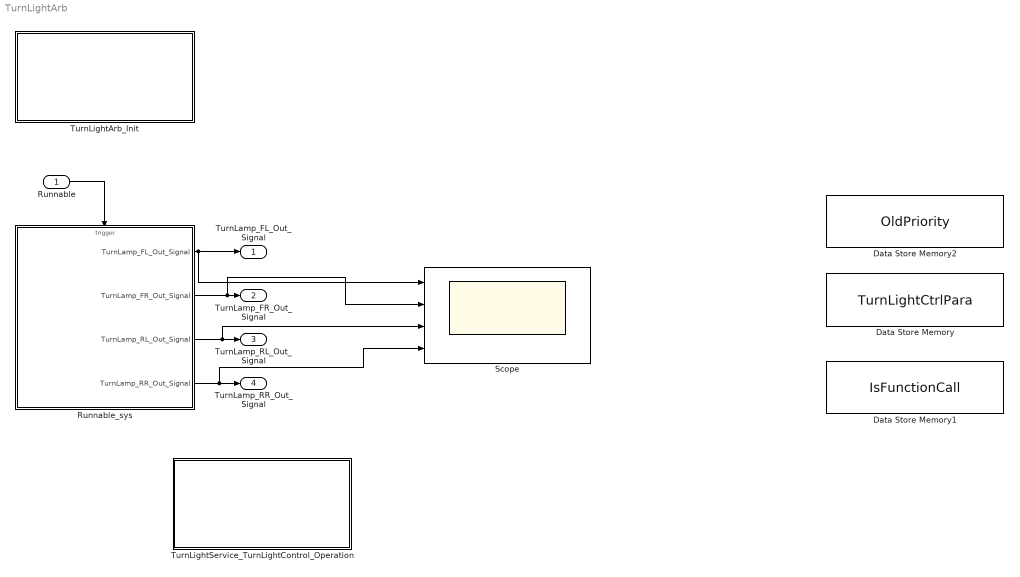
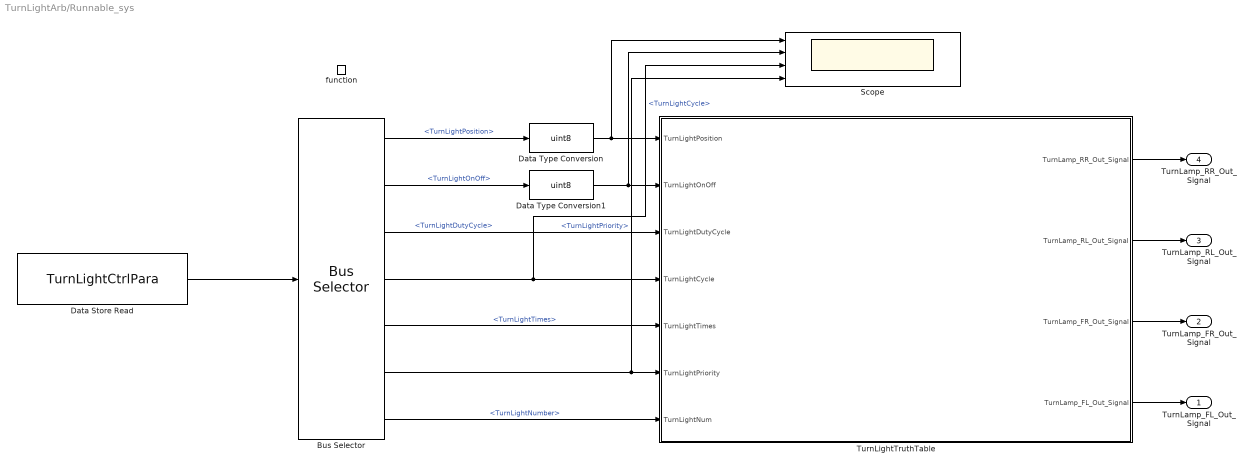
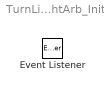
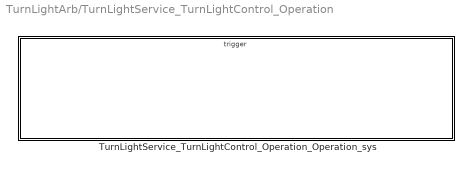
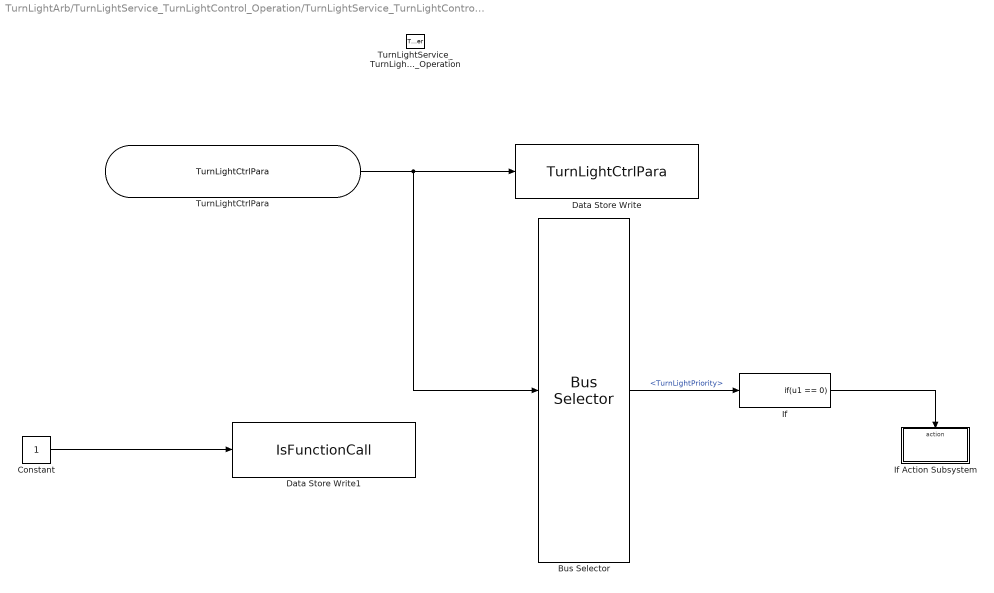
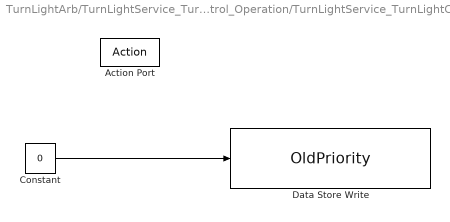
== stateflow chart TurnLightArb/Runnable_sys/TurnLightTruthTable ==
  state IDLE_
    en:
    UsePriorityArb();
  state TrunLightArtribution [function]
    (default) -> (junction 448)
    (junction 448) -> (junction 450) : { aVarTruthTableCondition_1 = (TurnLightPosition==ComplexTurnLightPosition.RIGHT); }
    (junction 450) -> (junction 452) : { aVarTruthTableCondition_2 = (TurnLightPosition==ComplexTurnLightPosition.LEFT); }
    (junction 452) -> (junction 454) : { aVarTruthTableCondition_3 = (TurnLightPosition==ComplexTurnLightPosition.FRONT_LEFT); }
    (junction 454) -> (junction 456) : { aVarTruthTableCondition_4 = (TurnLightPosition==ComplexTurnLightPosition.FRONT_RIGHT); }
    (junction 456) -> (junction 458) : { aVarTruthTableCondition_5 = (TurnLightPosition==ComplexTurnLightPosition.REAR_LEFT); }
    (junction 458) -> (junction 460) : { aVarTruthTableCondition_6 = (TurnLightPosition==ComplexTurnLightPosition.REAR_RIGHT); }
    (junction 460) -> (junction 462) : { aVarTruthTableCondition_7 = (TurnLightPosition==ComplexTurnLightPosition.ALL); }
    (junction 462) -> (junction 464) : { aVarTruthTableCondition_8 = (TurnLightOnOff==ComplexTurnLightOnOff.ON); }
    (junction 464) -> (junction 466) : { aVarTruthTableCondition_9 = (TurnLightOnOff==ComplexTurnLightOnOff.OFF); }
    (junction 466) -> (junction 468) : { aVarTruthTableCondition_10 = (TurnLightCycle==8); }
    (junction 468) -> (junction 470) : { aVarTruthTableCondition_11 = (TurnLightCycle==4); }
    (junction 470) -> (junction 472) : { aVarTruthTableCondition_12 = (TurnLightPriority==3); }
    (junction 472) -> (junction 474) : { aVarTruthTableCondition_13 = (TurnLightPriority==4); }
    (junction 474) -> (junction 476) : { aVarTruthTableCondition_14 = (TurnLightNum==3); }
    (junction 476) -> (junction 478) : { aVarTruthTableCondition_15 = (TurnLightNum==0); }
    (junction 478) -> (junction 480) [order 1] : [aVarTruthTableCondition_3 && aVarTruthTableCondition_9 && aVarTruthTableCondition_13 && aVarTruthTableCondition_15]
    (junction 480) -> (junction 482) : { /* 'FL_OFF': */ TurnLamp_FL_Out_Signal=NOQUEST; }
    (junction 478) -> (junction 484) [order 2]
    (junction 484) -> (junction 486) [order 1] : [aVarTruthTableCondition_4 && aVarTruthTableCondition_9 && aVarTruthTableCondition_13 && aVarTruthTableCondition_15]
    (junction 486) -> (junction 488) : { /* 'FR_OFF': */ TurnLamp_FR_Out_Signal=NOQUEST; }
    (junction 484) -> (junction 490) [order 2]
    (junction 490) -> (junction 492) [order 1] : [aVarTruthTableCondition_5 && aVarTruthTableCondition_9 && aVarTruthTableCondition_13 && aVarTruthTableCondition_15]
    (junction 492) -> (junction 494) : { /* 'RL_OFF': */ TurnLamp_RL_Out_Signal=NOQUEST; }
    (junction 490) -> (junction 496) [order 2]
    (junction 496) -> (junction 498) [order 1] : [aVarTruthTableCondition_6 && aVarTruthTableCondition_9 && aVarTruthTableCondition_13 && aVarTruthTableCondition_15]
    (junction 498) -> (junction 500) : { /* 'RR_OFF': */ TurnLamp_RR_Out_Signal=NOQUEST; }
    (junction 496) -> (junction 502) [order 2]
    (junction 502) -> (junction 504) [order 1] : [aVarTruthTableCondition_3 && aVarTruthTableCondition_8 && aVarTruthTableCondition_11 && aVarTruthTableCondition_13 && aVarTruthTableCondition_15]
    (junction 504) -> (junction 506) : { /* 'FL_DOUBLE': */ TurnLamp_FL_Out_Signal=MODE_DOUBLE; }
    (junction 502) -> (junction 508) [order 2]
    (junction 508) -> (junction 510) [order 1] : [aVarTruthTableCondition_4 && aVarTruthTableCondition_8 && aVarTruthTableCondition_11 && aVarTruthTableCondition_13 && aVarTruthTableCondition_15]
    (junction 510) -> (junction 512) : { /* 'FR_DOUBLE': */ TurnLamp_FR_Out_Signal=MODE_DOUBLE; }
    (junction 508) -> (junction 514) [order 2]
    (junction 514) -> (junction 516) [order 1] : [aVarTruthTableCondition_5 && aVarTruthTableCondition_8 && aVarTruthTableCondition_11 && aVarTruthTableCondition_13 && aVarTruthTableCondition_15]
    (junction 516) -> (junction 518) : { /* 'RL_DOUBLE': */ TurnLamp_RL_Out_Signal=MODE_DOUBLE; }
    (junction 514) -> (junction 520) [order 2]
    (junction 520) -> (junction 522) [order 1] : [aVarTruthTableCondition_6 && aVarTruthTableCondition_8 && aVarTruthTableCondition_11 && aVarTruthTableCondition_13 && aVarTruthTableCondition_15]
    (junction 522) -> (junction 524) : { /* 'RR_DOUBLE': */ TurnLamp_RR_Out_Signal=MODE_DOUBLE; }
    (junction 520) -> (junction 526) [order 2]
    (junction 526) -> (junction 528) [order 1] : [aVarTruthTableCondition_1 && aVarTruthTableCondition_8 && aVarTruthTableCondition_10 && aVarTruthTableCondition_12 && aVarTruthTableCondition_14]
    (junction 528) -> (junction 530) : { /* 'TurnLight_RightShort': */ TurnLamp_FR_Out_Signal=MODE_THREE; TurnLamp_RL_Out_Signal=NOQUEST; TurnLamp_RR_Out_Signal=MODE_THREE; TurnLamp_FL_Out_Signal=NOQUEST; }
    (junction 526) -> (junction 532) [order 2]
    (junction 532) -> (junction 534) [order 1] : [aVarTruthTableCondition_1 && aVarTruthTableCondition_8 && aVarTruthTableCondition_10 && aVarTruthTableCondition_12 && aVarTruthTableCondition_15]
    (junction 534) -> (junction 536) : { /* 'TurnLight_RightLong': */ TurnLamp_FR_Out_Signal=MODE_LONG; TurnLamp_RL_Out_Signal=NOQUEST; TurnLamp_RR_Out_Signal=MODE_LONG; TurnLamp_FL_Out_Signal=NOQUEST; }
    (junction 532) -> (junction 538) [order 2]
    (junction 538) -> (junction 540) [order 1] : [aVarTruthTableCondition_2 && aVarTruthTableCondition_8 && aVarTruthTableCondition_10 && aVarTruthTableCondition_12 && aVarTruthTableCondition_14]
    (junction 540) -> (junction 542) : { /* 'TurnLight_LeftShort': */ TurnLamp_FR_Out_Signal=NOQUEST; TurnLamp_RL_Out_Signal=MODE_THREE; TurnLamp_RR_Out_Signal=NOQUEST; TurnLamp_FL_Out_Signal=MODE_THREE; }
    (junction 538) -> (junction 544) [order 2]
    (junction 544) -> (junction 546) [order 1] : [aVarTruthTableCondition_2 && aVarTruthTableCondition_8 && aVarTruthTableCondition_10 && aVarTruthTableCondition_12 && aVarTruthTableCondition_15]
    (junction 546) -> (junction 548) : { /* 'TurnLight_LeftLong': */ TurnLamp_FR_Out_Signal=NOQUEST; TurnLamp_RL_Out_Signal=MODE_LONG; TurnLamp_RR_Out_Signal=NOQUEST; TurnLamp_FL_Out_Signal=MODE_LONG; }
    (junction 544) -> (junction 550) [order 2]
    (junction 550) -> (junction 552) [order 1] : [aVarTruthTableCondition_7 && aVarTruthTableCondition_8 && aVarTruthTableCondition_10 && aVarTruthTableCondition_12 && aVarTruthTableCondition_15]
    (junction 552) -> (junction 554) : { /* 'TurnLight_ALLON': */ TurnLamp_FR_Out_Signal=MODE_LONG; TurnLamp_RL_Out_Signal=MODE_LONG; TurnLamp_RR_Out_Signal=MODE_LONG; TurnLamp_FL_Out_Signal=MODE_LONG; }
    (junction 550) -> (junction 556) [order 2]
    (junction 556) -> (junction 558) : [aVarTruthTableCondition_7 && aVarTruthTableCondition_9 && aVarTruthTableCondition_12 && aVarTruthTableCondition_15]
    (junction 558) -> (junction 560) : { /* 'TurnLight_ALLOFF': */ TurnLamp_FR_Out_Signal=NOQUEST; TurnLamp_RL_Out_Signal=NOQUEST; TurnLamp_RR_Out_Signal=NOQUEST; TurnLamp_FL_Out_Signal=NOQUEST; }
  state UsePriorityArb [function]
    (default) -> (junction 33)
    (junction 33) -> (junction 34) [order 1] : [OldPriority<=TurnLightPriority]
    (junction 33) -> (junction 35) [order 2]
    (junction 34) -> (junction 36) : {TrunLightArtribution(); OldPriority=TurnLightPriority;}
    (junction 36) -> (junction 35)
    (junction 35) -> (junction 37) : {IsFunctionCall=0;}
  (default) -> IDLE_
  IDLE_ -> IDLE_ : [IsFunctionCall==1]
  data: aVarTruthTableCondition_1 temporary boolean =0; aVarTruthTableCondition_2 temporary boolean =0; aVarTruthTableCondition_3 temporary boolean =0; aVarTruthTableCondition_4 temporary boolean =0; aVarTruthTableCondition_5 temporary boolean =0; aVarTruthTableCondition_6 temporary boolean =0; aVarTruthTableCondition_7 temporary boolean =0; aVarTruthTableCondition_8 temporary boolean =0; aVarTruthTableCondition_9 temporary boolean =0; aVarTruthTableCondition_10 temporary boolean =0; aVarTruthTableCondition_11 temporary boolean =0; aVarTruthTableCondition_12 temporary boolean =0; aVarTruthTableCondition_13 temporary boolean =0; aVarTruthTableCondition_14 temporary boolean =0; aVarTruthTableCondition_15 temporary boolean =0; TurnLightCycle input uint8; TurnLightDutyCycle input uint8; TurnLightNum input uint8; TurnLightOnOff input uint8; TurnLightPosition input uint8; TurnLightPriority input uint8; TurnLightTimes input uint8; TurnLamp_RR_Out_Signal output uint8; TurnLamp_RL_Out_Signal output uint8; TurnLamp_FR_Out_Signal output uint8; TurnLamp_FL_Out_Signal output uint8; IsFunctionCall data_store_memory; OldPriority data_store_memory; MODE_DOUBLE constant uint8 =3; MODE_LONG constant uint8 =2; MODE_THREE constant uint8 =1; NOQUEST constant uint8 =0

/*
 * Academic License - for use in teaching, academic research, and meeting
 * course requirements at degree granting institutions only.  Not for
 * government, commercial, or other organizational use.
 *
 * File: TurnLightArb.c
 *
 * Code generated for Simulink model 'TurnLightArb'.
 *
 * Model version                  : 1.8
 * Simulink Coder version         : 9.9 (R2023a) 19-Nov-2022
 * C/C++ source code generated on : Sat Oct 11 16:25:50 2025
 *
 * Target selection: autosar.tlc
 * Embedded hardware selection: Intel->x86-64 (Windows64)
 * Code generation objectives: Unspecified
 * Validation result: Not run
 */

#include "TurnLightArb.h"
#include "Rte_Type.h"
#include "rtwtypes.h"

/* Named constants for Chart: '<S1>/TurnLightTruthTable' */
#define TurnLightArb_MODE_DOUBLE       ((uint8)3U)
#define TurnLightArb_MODE_LONG         ((uint8)2U)
#define TurnLightArb_MODE_THREE        ((uint8)1U)
#define TurnLightArb_NOQUEST           ((uint8)0U)

/* PublicStructure Variables for Internal Data */
ARID_DEF_TurnLightArb_T TurnLightArb_ARID_DEF;/* '<Root>/Data Store Memory' */

/* Forward declaration for local functions */
static void TurnLightA_TrunLightArtribution(const uint8 *DataTypeConversion,
  const uint8 *DataTypeConversion1, const uint8 *TurnLightCycle, const uint8
  *TurnLightPriority);
static void TurnLightArb_UsePriorityArb(const uint8 *DataTypeConversion, const
  uint8 *DataTypeConversion1, const uint8 *TurnLightCycle, const uint8
  *TurnLightPriority);

/* Function for Chart: '<S1>/TurnLightTruthTable' */
static void TurnLightA_TrunLightArtribution(const uint8 *DataTypeConversion,
  const uint8 *DataTypeConversion1, const uint8 *TurnLightCycle, const uint8
  *TurnLightPriority)
{
  boolean aVarTruthTableCondition_10;
  boolean aVarTruthTableCondition_11;
  boolean aVarTruthTableCondition_12;
  boolean aVarTruthTableCondition_13;
  boolean aVarTruthTableCondition_14;
  boolean aVarTruthTableCondition_15;
  boolean aVarTruthTableCondition_3;
  boolean aVarTruthTableCondition_4;
  boolean aVarTruthTableCondition_5;
  boolean aVarTruthTableCondition_6;
  boolean aVarTruthTableCondition_7;
  boolean aVarTruthTableCondition_8;
  boolean aVarTruthTableCondition_9;
  aVarTruthTableCondition_3 = (*DataTypeConversion == FRONT_LEFT);
  aVarTruthTableCondition_4 = (*DataTypeConversion == FRONT_RIGHT);
  aVarTruthTableCondition_5 = (*DataTypeConversion == REAR_LEFT);
  aVarTruthTableCondition_6 = (*DataTypeConversion == REAR_RIGHT);
  aVarTruthTableCondition_7 = (*DataTypeConversion == ALL);
  aVarTruthTableCondition_8 = (*DataTypeConversion1 == ON);
  aVarTruthTableCondition_9 = (*DataTypeConversion1 == OFF);
  aVarTruthTableCondition_10 = (*TurnLightCycle == 8);
  aVarTruthTableCondition_11 = (*TurnLightCycle == 4);
  aVarTruthTableCondition_12 = (*TurnLightPriority == 3);
  aVarTruthTableCondition_13 = (*TurnLightPriority == 4);

  /* DataStoreRead: '<S1>/Data Store Read' */
  aVarTruthTableCondition_14 =
    (TurnLightArb_ARID_DEF.TurnLightCtrlPara_d.TurnLightNumber == 3);
  aVarTruthTableCondition_15 =
    (TurnLightArb_ARID_DEF.TurnLightCtrlPara_d.TurnLightNumber == 0);
  if (aVarTruthTableCondition_3 && aVarTruthTableCondition_9 &&
      aVarTruthTableCondition_13 && aVarTruthTableCondition_15) {
    /*  'FL_OFF':  */
    TurnLightArb_ARID_DEF.TurnLamp_FL_Out_Signal = TurnLightArb_NOQUEST;
  } else if (aVarTruthTableCondition_4 && aVarTruthTableCondition_9 &&
             aVarTruthTableCondition_13 && aVarTruthTableCondition_15) {
    /*  'FR_OFF':  */
    TurnLightArb_ARID_DEF.TurnLamp_FR_Out_Signal = TurnLightArb_NOQUEST;
  } else if (aVarTruthTableCondition_5 && aVarTruthTableCondition_9 &&
             aVarTruthTableCondition_13 && aVarTruthTableCondition_15) {
    /*  'RL_OFF':  */
    TurnLightArb_ARID_DEF.TurnLamp_RL_Out_Signal = TurnLightArb_NOQUEST;
  } else if (aVarTruthTableCondition_6 && aVarTruthTableCondition_9 &&
             aVarTruthTableCondition_13 && aVarTruthTableCondition_15) {
    /*  'RR_OFF':  */
    TurnLightArb_ARID_DEF.TurnLamp_RR_Out_Signal = TurnLightArb_NOQUEST;
  } else if (aVarTruthTableCondition_3 && aVarTruthTableCondition_8 &&
             aVarTruthTableCondition_11 && aVarTruthTableCondition_13 &&
             aVarTruthTableCondition_15) {
    /*  'FL_DOUBLE':  */
    TurnLightArb_ARID_DEF.TurnLamp_FL_Out_Signal = TurnLightArb_MODE_DOUBLE;
  } else if (aVarTruthTableCondition_4 && aVarTruthTableCondition_8 &&
             aVarTruthTableCondition_11 && aVarTruthTableCondition_13 &&
             aVarTruthTableCondition_15) {
    /*  'FR_DOUBLE':  */
    TurnLightArb_ARID_DEF.TurnLamp_FR_Out_Signal = TurnLightArb_MODE_DOUBLE;
  } else if (aVarTruthTableCondition_5 && aVarTruthTableCondition_8 &&
             aVarTruthTableCondition_11 && aVarTruthTableCondition_13 &&
             aVarTruthTableCondition_15) {
    /*  'RL_DOUBLE':  */
    TurnLightArb_ARID_DEF.TurnLamp_RL_Out_Signal = TurnLightArb_MODE_DOUBLE;
  } else if (aVarTruthTableCondition_6 && aVarTruthTableCondition_8 &&
             aVarTruthTableCondition_11 && aVarTruthTableCondition_13 &&
             aVarTruthTableCondition_15) {
    /*  'RR_DOUBLE':  */
    TurnLightArb_ARID_DEF.TurnLamp_RR_Out_Signal = TurnLightArb_MODE_DOUBLE;
  } else {
    aVarTruthTableCondition_3 = ((*DataTypeConversion == RIGHT) &&
      aVarTruthTableCondition_8 && aVarTruthTableCondition_10 &&
      aVarTruthTableCondition_12);
    if (aVarTruthTableCondition_3 && aVarTruthTableCondition_14) {
      /*  'TurnLight_RightShort':  */
      TurnLightArb_ARID_DEF.TurnLamp_FR_Out_Signal = TurnLightArb_MODE_THREE;
      TurnLightArb_ARID_DEF.TurnLamp_RL_Out_Signal = TurnLightArb_NOQUEST;
      TurnLightArb_ARID_DEF.TurnLamp_RR_Out_Signal = TurnLightArb_MODE_THREE;
      TurnLightArb_ARID_DEF.TurnLamp_FL_Out_Signal = TurnLightArb_NOQUEST;
    } else if (aVarTruthTableCondition_3 && aVarTruthTableCondition_15) {
      /*  'TurnLight_RightLong':  */
      TurnLightArb_ARID_DEF.TurnLamp_FR_Out_Signal = TurnLightArb_MODE_LONG;
      TurnLightArb_ARID_DEF.TurnLamp_RL_Out_Signal = TurnLightArb_NOQUEST;
      TurnLightArb_ARID_DEF.TurnLamp_RR_Out_Signal = TurnLightArb_MODE_LONG;
      TurnLightArb_ARID_DEF.TurnLamp_FL_Out_Signal = TurnLightArb_NOQUEST;
    } else {
      aVarTruthTableCondition_3 = ((*DataTypeConversion == LEFT) &&
        aVarTruthTableCondition_8 && aVarTruthTableCondition_10 &&
        aVarTruthTableCondition_12);
      if (aVarTruthTableCondition_3 && aVarTruthTableCondition_14) {
        /*  'TurnLight_LeftShort':  */
        TurnLightArb_ARID_DEF.TurnLamp_FR_Out_Signal = TurnLightArb_NOQUEST;
        TurnLightArb_ARID_DEF.TurnLamp_RL_Out_Signal = TurnLightArb_MODE_THREE;
        TurnLightArb_ARID_DEF.TurnLamp_RR_Out_Signal = TurnLightArb_NOQUEST;
        TurnLightArb_ARID_DEF.TurnLamp_FL_Out_Signal = TurnLightArb_MODE_THREE;
      } else if (aVarTruthTableCondition_3 && aVarTruthTableCondition_15) {
        /*  'TurnLight_LeftLong':  */
        TurnLightArb_ARID_DEF.TurnLamp_FR_Out_Signal = TurnLightArb_NOQUEST;
        TurnLightArb_ARID_DEF.TurnLamp_RL_Out_Signal = TurnLightArb_MODE_LONG;
        TurnLightArb_ARID_DEF.TurnLamp_RR_Out_Signal = TurnLightArb_NOQUEST;
        TurnLightArb_ARID_DEF.TurnLamp_FL_Out_Signal = TurnLightArb_MODE_LONG;
      } else if (aVarTruthTableCondition_7 && aVarTruthTableCondition_8 &&
                 aVarTruthTableCondition_10 && aVarTruthTableCondition_12 &&
                 aVarTruthTableCondition_15) {
        /*  'TurnLight_ALLON':  */
        TurnLightArb_ARID_DEF.TurnLamp_FR_Out_Signal = TurnLightArb_MODE_LONG;
        TurnLightArb_ARID_DEF.TurnLamp_RL_Out_Signal = TurnLightArb_MODE_LONG;
        TurnLightArb_ARID_DEF.TurnLamp_RR_Out_Signal = TurnLightArb_MODE_LONG;
        TurnLightArb_ARID_DEF.TurnLamp_FL_Out_Signal = TurnLightArb_MODE_LONG;
      } else if (aVarTruthTableCondition_7 && aVarTruthTableCondition_9 &&
                 aVarTruthTableCondition_12 && aVarTruthTableCondition_15) {
        /*  'TurnLight_ALLOFF':  */
        TurnLightArb_ARID_DEF.TurnLamp_FR_Out_Signal = TurnLightArb_NOQUEST;
        TurnLightArb_ARID_DEF.TurnLamp_RL_Out_Signal = TurnLightArb_NOQUEST;
        TurnLightArb_ARID_DEF.TurnLamp_RR_Out_Signal = TurnLightArb_NOQUEST;
        TurnLightArb_ARID_DEF.TurnLamp_FL_Out_Signal = TurnLightArb_NOQUEST;
      }
    }
  }
}

/* Function for Chart: '<S1>/TurnLightTruthTable' */
static void TurnLightArb_UsePriorityArb(const uint8 *DataTypeConversion, const
  uint8 *DataTypeConversion1, const uint8 *TurnLightCycle, const uint8
  *TurnLightPriority)
{
  if (TurnLightArb_ARID_DEF.OldPriority <= *TurnLightPriority) {
    TurnLightA_TrunLightArtribution(DataTypeConversion, DataTypeConversion1,
      TurnLightCycle, TurnLightPriority);
    TurnLightArb_ARID_DEF.OldPriority = *TurnLightPriority;
  }

  TurnLightArb_ARID_DEF.IsFunctionCall = false;
}

/* Model step function for TID1 */
void Runnable(void)                    /* Explicit Task: Runnable */
{
  uint8 DataTypeConversion;
  uint8 DataTypeConversion1;

  /* RootInportFunctionCallGenerator generated from: '<Root>/Runnable' incorporates:
   *  SubSystem: '<Root>/Runnable_sys'
   */
  /* DataTypeConversion: '<S1>/Data Type Conversion' incorporates:
   *  DataStoreRead: '<S1>/Data Store Read'
   */
  DataTypeConversion =
    TurnLightArb_ARID_DEF.TurnLightCtrlPara_d.TurnLightPosition;

  /* DataTypeConversion: '<S1>/Data Type Conversion1' incorporates:
   *  DataStoreRead: '<S1>/Data Store Read'
   */
  DataTypeConversion1 = TurnLightArb_ARID_DEF.TurnLightCtrlPara_d.TurnLightOnOff;

  /* Chart: '<S1>/TurnLightTruthTable' incorporates:
   *  DataStoreRead: '<S1>/Data Store Read'
   *  SignalConversion generated from: '<S1>/Bus Selector'
   * */
  if (TurnLightArb_ARID_DEF.is_active_c3_TurnLightArb == 0U) {
    TurnLightArb_ARID_DEF.is_active_c3_TurnLightArb = 1U;
    TurnLightArb_UsePriorityArb(&DataTypeConversion, &DataTypeConversion1,
      &TurnLightArb_ARID_DEF.TurnLightCtrlPara_d.TurnLightCycle,
      &TurnLightArb_ARID_DEF.TurnLightCtrlPara_d.TurnLightPriority);
  } else if (TurnLightArb_ARID_DEF.IsFunctionCall) {
    TurnLightArb_UsePriorityArb(&DataTypeConversion, &DataTypeConversion1,
      &TurnLightArb_ARID_DEF.TurnLightCtrlPara_d.TurnLightCycle,
      &TurnLightArb_ARID_DEF.TurnLightCtrlPara_d.TurnLightPriority);
  }

  /* End of Chart: '<S1>/TurnLightTruthTable' */
  /* End of Outputs for RootInportFunctionCallGenerator generated from: '<Root>/Runnable' */

  /* Outport: '<Root>/TurnLamp_FL_Out_Signal' */
  (void)Rte_Write_TurnLamp_FL_Out_Signal
    (TurnLightArb_ARID_DEF.TurnLamp_FL_Out_Signal);

  /* Outport: '<Root>/TurnLamp_FR_Out_Signal' */
  (void)Rte_Write_TurnLamp_FR_Out_Signal
    (TurnLightArb_ARID_DEF.TurnLamp_FR_Out_Signal);

  /* Outport: '<Root>/TurnLamp_RL_Out_Signal' */
  (void)Rte_Write_TurnLamp_RL_Out_Signal
    (TurnLightArb_ARID_DEF.TurnLamp_RL_Out_Signal);

  /* Outport: '<Root>/TurnLamp_RR_Out_Signal' */
  (void)Rte_Write_TurnLamp_RR_Out_Signal
    (TurnLightArb_ARID_DEF.TurnLamp_RR_Out_Signal);
}

/* Output function */
void turnlightservice_turnlightcontrol_operation_operation_1(const
  TurnLightService *TurnLightCtrlPara)
{
  /* Outputs for Function Call SubSystem: '<S3>/TurnLightService_TurnLightControl_Operation_Operation_sys' */
  /* SignalConversion generated from: '<S5>/TurnLightCtrlPara' incorporates:
   *  DataStoreWrite: '<S5>/Data Store Write'
   */
  TurnLightArb_ARID_DEF.TurnLightCtrlPara_d = *TurnLightCtrlPara;

  /* DataStoreWrite: '<S5>/Data Store Write1' incorporates:
   *  Constant: '<S5>/Constant'
   */
  TurnLightArb_ARID_DEF.IsFunctionCall = true;

  /* If: '<S5>/If' incorporates:
   *  DataStoreWrite: '<S5>/Data Store Write'
   */
  if (TurnLightArb_ARID_DEF.TurnLightCtrlPara_d.TurnLightPriority == 0) {
    /* Outputs for IfAction SubSystem: '<S5>/If Action Subsystem' incorporates:
     *  ActionPort: '<S6>/Action Port'
     */
    /* DataStoreWrite: '<S6>/Data Store Write' incorporates:
     *  Constant: '<S6>/Constant'
     */
    TurnLightArb_ARID_DEF.OldPriority = 0U;

    /* End of Outputs for SubSystem: '<S5>/If Action Subsystem' */
  }

  /* End of If: '<S5>/If' */
  /* End of Outputs for SubSystem: '<S3>/TurnLightService_TurnLightControl_Operation_Operation_sys' */
}
